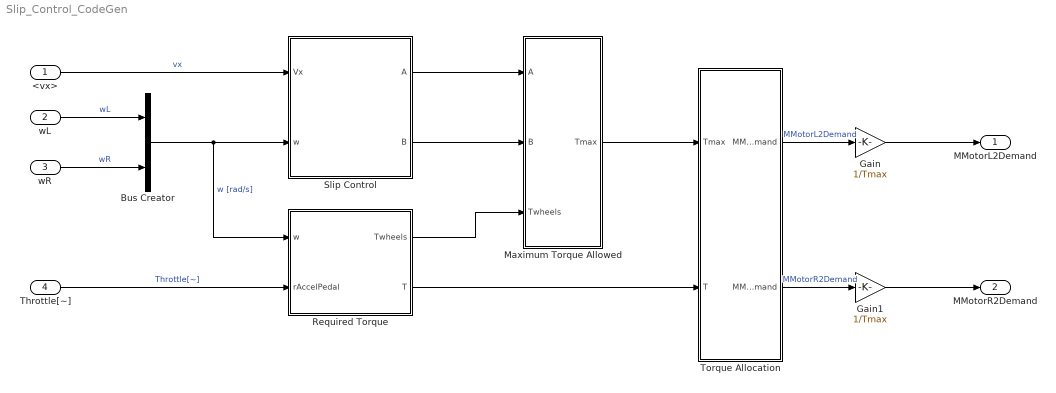
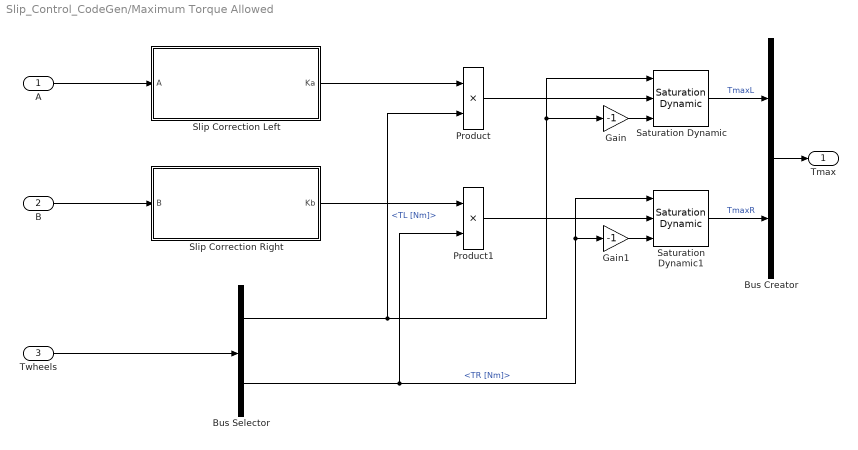
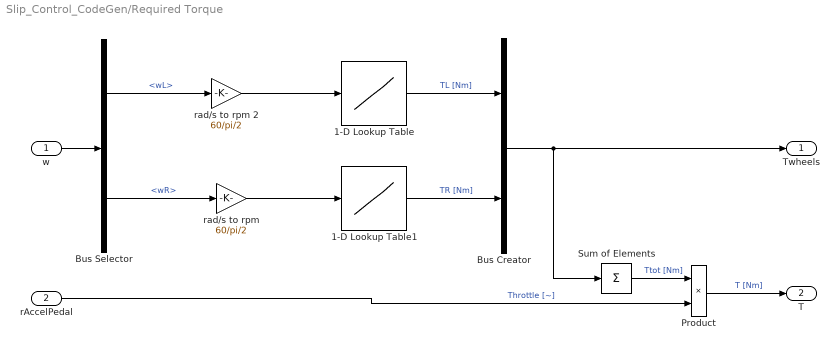
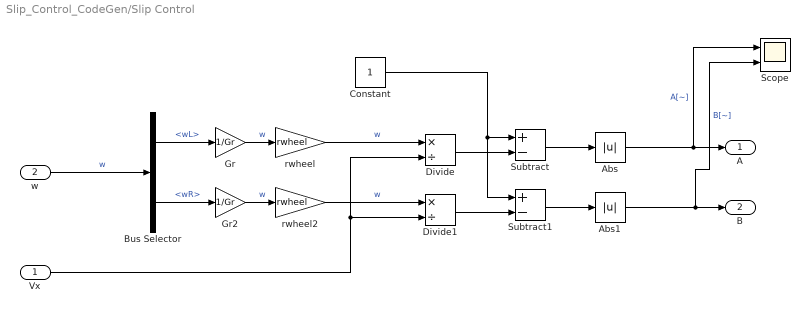
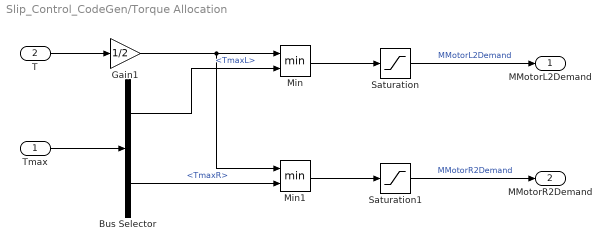
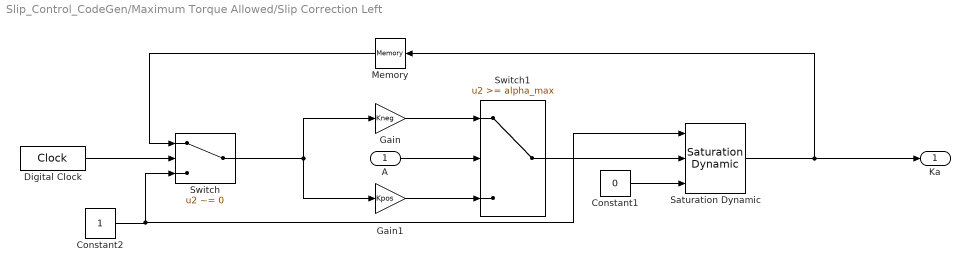
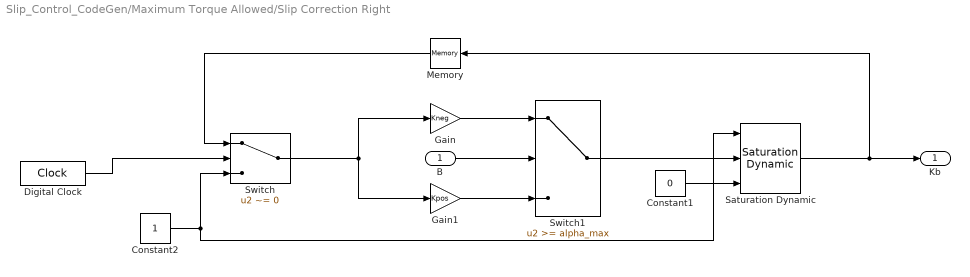
//
// Academic License - for use in teaching, academic research, and meeting
// course requirements at degree granting institutions only.  Not for
// government, commercial, or other organizational use.
//
// File: Slip_Control_CodeGen.cpp
//
// Code generated for Simulink model 'Slip_Control_CodeGen'.
//
// Model version                  : 15.43
// Simulink Coder version         : 25.2 (R2025b) 28-Jul-2025
// C/C++ source code generated on : Sun Nov 30 14:28:26 2025
//
// Target selection: ert.tlc
// Embedded hardware selection: Atmel->AVR
// Code generation objectives:
//    1. Execution efficiency
//    2. RAM efficiency
// Validation result: Not run
//
#include "Slip_Control_CodeGen.h"
#include <cmath>
#include "rtwtypes.h"

static real_T look1_binlx(real_T u0, const real_T bp0[], const real_T table[],
  uint32_T maxIndex);
static real_T look1_binlx(real_T u0, const real_T bp0[], const real_T table[],
  uint32_T maxIndex)
{
  real_T frac;
  real_T yL_0d0;
  uint32_T iLeft;

  // Column-major Lookup 1-D
  // Search method: 'binary'
  // Use previous index: 'off'
  // Interpolation method: 'Linear point-slope'
  // Extrapolation method: 'Linear'
  // Use last breakpoint for index at or above upper limit: 'off'
  // Remove protection against out-of-range input in generated code: 'off'

  // Prelookup - Index and Fraction
  // Index Search method: 'binary'
  // Extrapolation method: 'Linear'
  // Use previous index: 'off'
  // Use last breakpoint for index at or above upper limit: 'off'
  // Remove protection against out-of-range input in generated code: 'off'

  if (u0 <= bp0[0UL]) {
    iLeft = 0UL;
    frac = (u0 - bp0[0UL]) / (bp0[1UL] - bp0[0UL]);
  } else if (u0 < bp0[maxIndex]) {
    uint32_T bpIdx;
    uint32_T iRght;

    // Binary Search
    bpIdx = maxIndex >> 1UL;
    iLeft = 0UL;
    iRght = maxIndex;
    while (iRght - iLeft > 1UL) {
      if (u0 < bp0[bpIdx]) {
        iRght = bpIdx;
      } else {
        iLeft = bpIdx;
      }

      bpIdx = (iRght + iLeft) >> 1UL;
    }

    frac = (u0 - bp0[iLeft]) / (bp0[iLeft + 1UL] - bp0[iLeft]);
  } else {
    iLeft = maxIndex - 1UL;
    frac = (u0 - bp0[maxIndex - 1UL]) / (bp0[maxIndex] - bp0[maxIndex - 1UL]);
  }

  // Column-major Interpolation 1-D
  // Interpolation method: 'Linear point-slope'
  // Use last breakpoint for index at or above upper limit: 'off'
  // Overflow mode: 'wrapping'

  yL_0d0 = table[iLeft];
  return (table[iLeft + 1UL] - yL_0d0) * frac + yL_0d0;
}

// Model step function
void Slip_Control_CodeGen::step()
{
  real_T rtb_DigitalClock;
  real_T rtb_MMotorR2Demand;
  real_T rtb_Switch_a;
  real_T rtb_TLNm;
  real_T rtb_TRNm;

  // Lookup_n-D: '<S2>/1-D Lookup Table' incorporates:
  //   Gain: '<S2>/rad//s to rpm 2'
  //   Inport: '<Root>/wL'

  rtb_TLNm = look1_binlx(9.5492965855137211 * rtU.wL, rtConstP.pooled5,
    rtConstP.pooled4, 46UL);

  // Lookup_n-D: '<S2>/1-D Lookup Table1' incorporates:
  //   Gain: '<S2>/rad//s to rpm'
  //   Inport: '<Root>/wR'

  rtb_TRNm = look1_binlx(9.5492965855137211 * rtU.wR, rtConstP.pooled5,
    rtConstP.pooled4, 46UL);

  // Gain: '<S4>/Gain1' incorporates:
  //   Inport: '<Root>/Throttle[~]'
  //   Product: '<S2>/Product'
  //   Sum: '<S2>/Sum of Elements'

  rtb_MMotorR2Demand = (rtb_TLNm + rtb_TRNm) * rtU.Throttle * 0.5;

  // DigitalClock: '<S7>/Digital Clock' incorporates:
  //   DigitalClock: '<S8>/Digital Clock'

  rtb_Switch_a = (((&rtM)->Timing.clockTick1) * 0.001);

  // Switch: '<S7>/Switch' incorporates:
  //   Constant: '<S7>/Constant2'
  //   DigitalClock: '<S7>/Digital Clock'
  //   Memory: '<S7>/Memory'

  if (rtb_Switch_a != 0.0) {
    rtb_DigitalClock = rtDW.Memory_PreviousInput;
  } else {
    rtb_DigitalClock = 1.0;
  }

  // End of Switch: '<S7>/Switch'

  // Switch: '<S7>/Switch1' incorporates:
  //   Abs: '<S3>/Abs'
  //   Constant: '<S3>/Constant'
  //   Gain: '<S3>/Gr'
  //   Gain: '<S3>/rwheel'
  //   Gain: '<S7>/Gain'
  //   Gain: '<S7>/Gain1'
  //   Inport: '<Root>/<vx>'
  //   Inport: '<Root>/wL'
  //   Product: '<S3>/Divide'
  //   Sum: '<S3>/Subtract'

  if (std::abs(1.0 - 0.2 * rtU.wL * 0.2603 / rtU.vx) >= 0.12) {
    rtb_DigitalClock *= 0.999;
  } else {
    rtb_DigitalClock *= 1.001;
  }

  // End of Switch: '<S7>/Switch1'

  // Switch: '<S9>/Switch2' incorporates:
  //   Constant: '<S7>/Constant1'
  //   Constant: '<S7>/Constant2'
  //   RelationalOperator: '<S9>/LowerRelop1'
  //   RelationalOperator: '<S9>/UpperRelop'
  //   Switch: '<S9>/Switch'

  if (rtb_DigitalClock > 1.0) {
    // Switch: '<S9>/Switch2'
    rtDW.Switch2 = 1.0;
  } else if (rtb_DigitalClock < 0.0) {
    // Switch: '<S9>/Switch' incorporates:
    //   Constant: '<S7>/Constant1'
    //   Switch: '<S9>/Switch2'

    rtDW.Switch2 = 0.0;
  } else {
    // Switch: '<S9>/Switch2' incorporates:
    //   Switch: '<S9>/Switch'

    rtDW.Switch2 = rtb_DigitalClock;
  }

  // End of Switch: '<S9>/Switch2'

  // Product: '<S1>/Product'
  rtb_DigitalClock = rtDW.Switch2 * rtb_TLNm;

  // Switch: '<S5>/Switch2' incorporates:
  //   RelationalOperator: '<S5>/LowerRelop1'

  if (!(rtb_DigitalClock > rtb_TLNm)) {
    // Gain: '<S1>/Gain'
    rtb_TLNm = -rtb_TLNm;

    // Switch: '<S5>/Switch' incorporates:
    //   RelationalOperator: '<S5>/UpperRelop'

    if (!(rtb_DigitalClock < rtb_TLNm)) {
      rtb_TLNm = rtb_DigitalClock;
    }

    // End of Switch: '<S5>/Switch'
  }

  // End of Switch: '<S5>/Switch2'

  // MinMax: '<S4>/Min'
  rtb_TLNm = std::fmin(rtb_MMotorR2Demand, rtb_TLNm);

  // Saturate: '<S4>/Saturation'
  if (rtb_TLNm > 60.0) {
    rtb_TLNm = 60.0;
  } else if (rtb_TLNm < 0.0) {
    rtb_TLNm = 0.0;
  }

  // Outport: '<Root>/MMotorL2Demand' incorporates:
  //   Gain: '<Root>/Gain'
  //   Saturate: '<S4>/Saturation'

  rtY.MMotorL2Demand = 0.019596050742573669 * rtb_TLNm;

  // Switch: '<S8>/Switch' incorporates:
  //   Constant: '<S8>/Constant2'
  //   Memory: '<S8>/Memory'

  if (rtb_Switch_a != 0.0) {
    rtb_Switch_a = rtDW.Memory_PreviousInput_m;
  } else {
    rtb_Switch_a = 1.0;
  }

  // End of Switch: '<S8>/Switch'

  // Switch: '<S8>/Switch1' incorporates:
  //   Abs: '<S3>/Abs1'
  //   Constant: '<S3>/Constant'
  //   Gain: '<S3>/Gr2'
  //   Gain: '<S3>/rwheel2'
  //   Gain: '<S8>/Gain'
  //   Gain: '<S8>/Gain1'
  //   Inport: '<Root>/<vx>'
  //   Inport: '<Root>/wR'
  //   Product: '<S3>/Divide1'
  //   Sum: '<S3>/Subtract1'

  if (std::abs(1.0 - 0.2 * rtU.wR * 0.2603 / rtU.vx) >= 0.12) {
    rtb_Switch_a *= 0.999;
  } else {
    rtb_Switch_a *= 1.001;
  }

  // End of Switch: '<S8>/Switch1'

  // Switch: '<S10>/Switch2' incorporates:
  //   Constant: '<S8>/Constant1'
  //   Constant: '<S8>/Constant2'
  //   RelationalOperator: '<S10>/LowerRelop1'
  //   RelationalOperator: '<S10>/UpperRelop'
  //   Switch: '<S10>/Switch'

  if (rtb_Switch_a > 1.0) {
    // Switch: '<S10>/Switch2'
    rtDW.Switch2_d = 1.0;
  } else if (rtb_Switch_a < 0.0) {
    // Switch: '<S10>/Switch' incorporates:
    //   Constant: '<S8>/Constant1'
    //   Switch: '<S10>/Switch2'

    rtDW.Switch2_d = 0.0;
  } else {
    // Switch: '<S10>/Switch2' incorporates:
    //   Switch: '<S10>/Switch'

    rtDW.Switch2_d = rtb_Switch_a;
  }

  // End of Switch: '<S10>/Switch2'

  // Product: '<S1>/Product1'
  rtb_Switch_a = rtDW.Switch2_d * rtb_TRNm;

  // Switch: '<S6>/Switch2' incorporates:
  //   Gain: '<S1>/Gain1'
  //   RelationalOperator: '<S6>/LowerRelop1'
  //   RelationalOperator: '<S6>/UpperRelop'
  //   Switch: '<S6>/Switch'

  if (rtb_Switch_a > rtb_TRNm) {
    rtb_TLNm = rtb_TRNm;
  } else if (rtb_Switch_a < -rtb_TRNm) {
    // Switch: '<S6>/Switch' incorporates:
    //   Gain: '<S1>/Gain1'

    rtb_TLNm = -rtb_TRNm;
  } else {
    rtb_TLNm = rtb_Switch_a;
  }

  // End of Switch: '<S6>/Switch2'

  // MinMax: '<S4>/Min1'
  rtb_TLNm = std::fmin(rtb_MMotorR2Demand, rtb_TLNm);

  // Saturate: '<S4>/Saturation1'
  if (rtb_TLNm > 60.0) {
    rtb_TLNm = 60.0;
  } else if (rtb_TLNm < 0.0) {
    rtb_TLNm = 0.0;
  }

  // Outport: '<Root>/MMotorR2Demand' incorporates:
  //   Gain: '<Root>/Gain1'
  //   Saturate: '<S4>/Saturation1'

  rtY.MMotorR2Demand = 0.019596050742573669 * rtb_TLNm;

  // Update for Memory: '<S7>/Memory'
  rtDW.Memory_PreviousInput = rtDW.Switch2;

  // Update for Memory: '<S8>/Memory'
  rtDW.Memory_PreviousInput_m = rtDW.Switch2_d;

  // Update absolute time for base rate
  // The "clockTick0" counts the number of times the code of this task has
  //  been executed. The absolute time is the multiplication of "clockTick0"
  //  and "Timing.stepSize0". Size of "clockTick0" ensures timer will not
  //  overflow during the application lifespan selected.

  (&rtM)->Timing.t[0] =
    ((time_T)(++(&rtM)->Timing.clockTick0)) * (&rtM)->Timing.stepSize0;

  {
    // Update absolute timer for sample time: [0.001s, 0.0s]
    // The "clockTick1" counts the number of times the code of this task has
    //  been executed. The resolution of this integer timer is 0.001, which is the step size
    //  of the task. Size of "clockTick1" ensures timer will not overflow during the
    //  application lifespan selected.

    (&rtM)->Timing.clockTick1++;
  }
}
